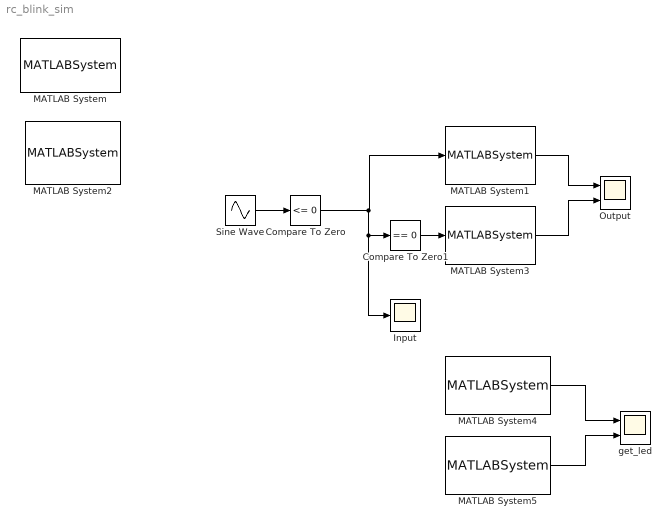
/*
 * Academic License - for use in teaching, academic research, and meeting
 * course requirements at degree granting institutions only.  Not for
 * government, commercial, or other organizational use.
 *
 * File: rc_blink_sim.c
 *
 * Code generated for Simulink model 'rc_blink_sim'.
 *
 * Model version                  : 1.19
 * Simulink Coder version         : 8.12 (R2017a) 16-Feb-2017
 * C/C++ source code generated on : Mon Aug 14 21:54:00 2017
 *
 * Target selection: ert.tlc
 * Embedded hardware selection: ARM Compatible->ARM Cortex
 * Code generation objectives: Unspecified
 * Validation result: Not run
 */

#include "rc_blink_sim.h"
#include "rc_blink_sim_private.h"
#include "rc_blink_sim_dt.h"

/* Block signals (auto storage) */
B_rc_blink_sim_T rc_blink_sim_B;

/* Block states (auto storage) */
DW_rc_blink_sim_T rc_blink_sim_DW;

/* Real-time model */
RT_MODEL_rc_blink_sim_T rc_blink_sim_M_;
RT_MODEL_rc_blink_sim_T *const rc_blink_sim_M = &rc_blink_sim_M_;

/*
 * Start for atomic system:
 *    'synthesized block'
 *    'synthesized block'
 */
void rc_blink_si_MATLABSystem5_Start(DW_MATLABSystem5_rc_blink_sim_T *localDW,
  P_MATLABSystem5_rc_blink_sim_T *localP)
{
  /* Start for MATLABSystem: '<Root>/MATLAB System5' */
  localDW->obj.isInitialized = 0;
  localDW->objisempty = true;
  localDW->obj.led = localP->MATLABSystem5_led;
  localDW->obj.isInitialized = 1;
}

/*
 * Output and update for atomic system:
 *    'synthesized block'
 *    'synthesized block'
 */
void rc_blink_sim_MATLABSystem5(B_MATLABSystem5_rc_blink_sim_T *localB,
  DW_MATLABSystem5_rc_blink_sim_T *localDW, P_MATLABSystem5_rc_blink_sim_T
  *localP)
{
  boolean_T p;
  boolean_T p_0;

  /* Start for MATLABSystem: '<Root>/MATLAB System5' incorporates:
   *  MATLABSystem: '<Root>/MATLAB System5'
   */
  p = false;
  p_0 = true;
  if (!(localDW->obj.led == localP->MATLABSystem5_led)) {
    p_0 = false;
  }

  if (p_0) {
    p = true;
  }

  if (!p) {
    localDW->obj.led = localP->MATLABSystem5_led;
  }

  /* MATLABSystem: '<Root>/MATLAB System5' incorporates:
   *  Start for MATLABSystem: '<Root>/MATLAB System5'
   */
  localB->MATLABSystem5 = rc_get_led(localDW->obj.led);
}

/*
 * Termination for atomic system:
 *    'synthesized block'
 *    'synthesized block'
 */
void rc_blink_sim_MATLABSystem5_Term(DW_MATLABSystem5_rc_blink_sim_T *localDW)
{
  /* Start for MATLABSystem: '<Root>/MATLAB System5' incorporates:
   *  Terminate for MATLABSystem: '<Root>/MATLAB System5'
   */
  if (localDW->obj.isInitialized == 1) {
    localDW->obj.isInitialized = 2;
  }

  /* End of Start for MATLABSystem: '<Root>/MATLAB System5' */
}

/*
 * Start for atomic system:
 *    'synthesized block'
 *    'synthesized block'
 */
void rc_blink_si_MATLABSystem3_Start(DW_MATLABSystem3_rc_blink_sim_T *localDW,
  P_MATLABSystem3_rc_blink_sim_T *localP)
{
  /* Start for MATLABSystem: '<Root>/MATLAB System3' */
  localDW->obj.isInitialized = 0;
  localDW->objisempty = true;
  localDW->obj.led = localP->MATLABSystem3_led;
  localDW->obj.isInitialized = 1;
}

/*
 * Output and update for atomic system:
 *    'synthesized block'
 *    'synthesized block'
 */
void rc_blink_sim_MATLABSystem3(uint8_T rtu_0, B_MATLABSystem3_rc_blink_sim_T
  *localB, DW_MATLABSystem3_rc_blink_sim_T *localDW,
  P_MATLABSystem3_rc_blink_sim_T *localP)
{
  boolean_T p;
  boolean_T p_0;

  /* Start for MATLABSystem: '<Root>/MATLAB System3' incorporates:
   *  MATLABSystem: '<Root>/MATLAB System3'
   */
  p = false;
  p_0 = true;
  if (!(localDW->obj.led == localP->MATLABSystem3_led)) {
    p_0 = false;
  }

  if (p_0) {
    p = true;
  }

  if (!p) {
    localDW->obj.led = localP->MATLABSystem3_led;
  }

  /* MATLABSystem: '<Root>/MATLAB System3' incorporates:
   *  Start for MATLABSystem: '<Root>/MATLAB System3'
   */
  localB->MATLABSystem3 = rc_set_led(localDW->obj.led, rtu_0);
}

/*
 * Termination for atomic system:
 *    'synthesized block'
 *    'synthesized block'
 */
void rc_blink_sim_MATLABSystem3_Term(DW_MATLABSystem3_rc_blink_sim_T *localDW)
{
  /* Start for MATLABSystem: '<Root>/MATLAB System3' incorporates:
   *  Terminate for MATLABSystem: '<Root>/MATLAB System3'
   */
  if (localDW->obj.isInitialized == 1) {
    localDW->obj.isInitialized = 2;
  }

  /* End of Start for MATLABSystem: '<Root>/MATLAB System3' */
}

/* Model step function */
void rc_blink_sim_step(void)
{
  /* local block i/o variables */
  uint8_T rtb_Compare;

  /* RelationalOperator: '<S1>/Compare' incorporates:
   *  Constant: '<S1>/Constant'
   *  Sin: '<Root>/Sine Wave'
   */
  rc_blink_sim_B.Compare = (uint8_T)(sin(((real_T)rc_blink_sim_DW.counter +
    rc_blink_sim_P.SineWave_Offset) * 2.0 * 3.1415926535897931 /
    rc_blink_sim_P.SineWave_NumSamp) * rc_blink_sim_P.SineWave_Amp +
    rc_blink_sim_P.SineWave_Bias <= rc_blink_sim_P.Constant_Value);
  rc_blink_sim_MATLABSystem3(rc_blink_sim_B.Compare,
    &rc_blink_sim_B.MATLABSystem1, &rc_blink_sim_DW.MATLABSystem1,
    (P_MATLABSystem3_rc_blink_sim_T *)&rc_blink_sim_P.MATLABSystem1);

  /* RelationalOperator: '<S2>/Compare' incorporates:
   *  Constant: '<S2>/Constant'
   */
  rtb_Compare = (uint8_T)(rc_blink_sim_B.Compare ==
    rc_blink_sim_P.Constant_Value_n);
  rc_blink_sim_MATLABSystem3(rtb_Compare, &rc_blink_sim_B.MATLABSystem3,
    &rc_blink_sim_DW.MATLABSystem3, (P_MATLABSystem3_rc_blink_sim_T *)
    &rc_blink_sim_P.MATLABSystem3);
  rc_blink_sim_MATLABSystem5(&rc_blink_sim_B.MATLABSystem4,
    &rc_blink_sim_DW.MATLABSystem4, (P_MATLABSystem5_rc_blink_sim_T *)
    &rc_blink_sim_P.MATLABSystem4);
  rc_blink_sim_MATLABSystem5(&rc_blink_sim_B.MATLABSystem5,
    &rc_blink_sim_DW.MATLABSystem5, (P_MATLABSystem5_rc_blink_sim_T *)
    &rc_blink_sim_P.MATLABSystem5);

  /* Update for Sin: '<Root>/Sine Wave' */
  rc_blink_sim_DW.counter++;
  if (rc_blink_sim_DW.counter == rc_blink_sim_P.SineWave_NumSamp) {
    rc_blink_sim_DW.counter = 0;
  }

  /* End of Update for Sin: '<Root>/Sine Wave' */

  /* External mode */
  rtExtModeUploadCheckTrigger(1);

  {                                    /* Sample time: [0.1s, 0.0s] */
    rtExtModeUpload(0, rc_blink_sim_M->Timing.taskTime0);
  }

  /* signal main to stop simulation */
  {                                    /* Sample time: [0.1s, 0.0s] */
    if ((rtmGetTFinal(rc_blink_sim_M)!=-1) &&
        !((rtmGetTFinal(rc_blink_sim_M)-rc_blink_sim_M->Timing.taskTime0) >
          rc_blink_sim_M->Timing.taskTime0 * (DBL_EPSILON))) {
      rtmSetErrorStatus(rc_blink_sim_M, "Simulation finished");
    }

    if (rtmGetStopRequested(rc_blink_sim_M)) {
      rtmSetErrorStatus(rc_blink_sim_M, "Simulation finished");
    }
  }

  /* Update absolute time for base rate */
  /* The "clockTick0" counts the number of times the code of this task has
   * been executed. The absolute time is the multiplication of "clockTick0"
   * and "Timing.stepSize0". Size of "clockTick0" ensures timer will not
   * overflow during the application lifespan selected.
   */
  rc_blink_sim_M->Timing.taskTime0 =
    (++rc_blink_sim_M->Timing.clockTick0) * rc_blink_sim_M->Timing.stepSize0;
}
